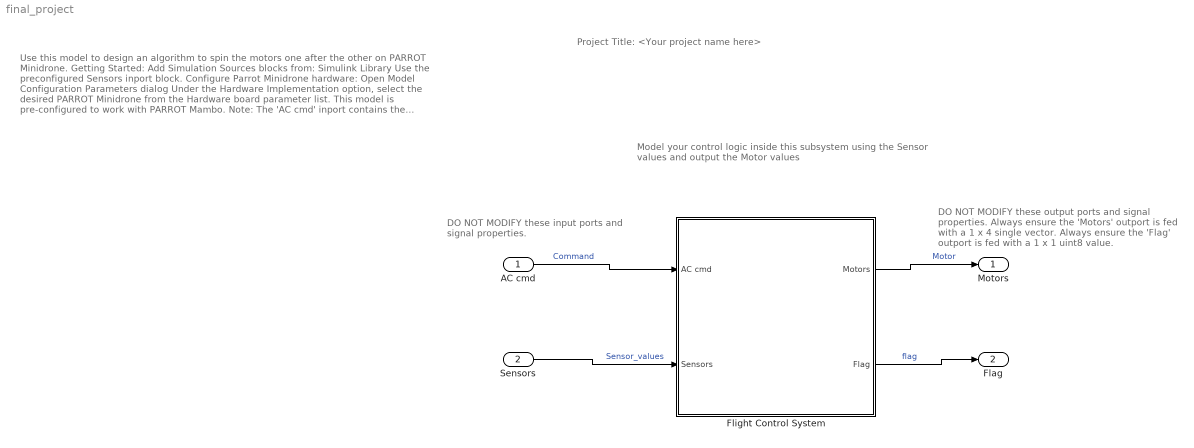
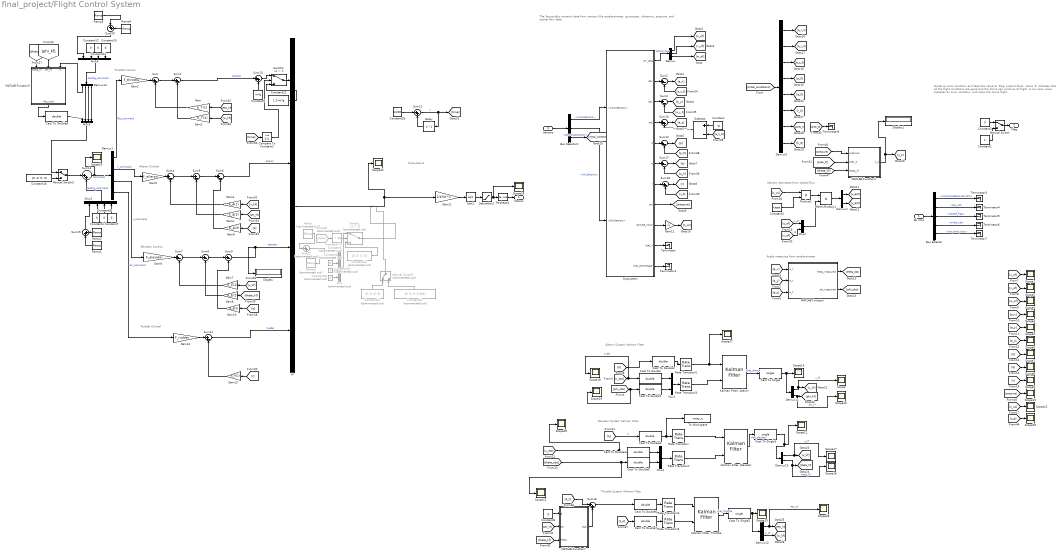
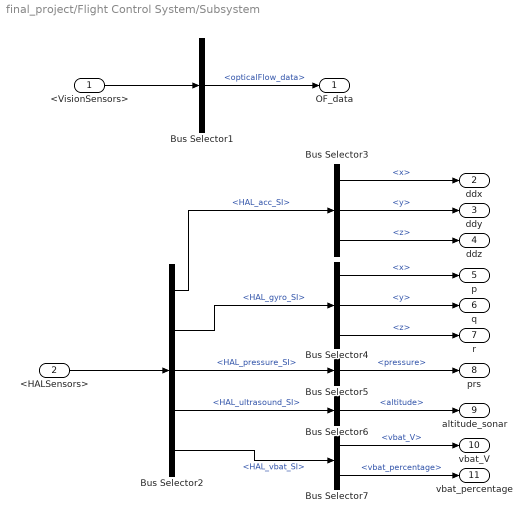
== matlab function final_project/Flight Control System/MATLAB Function1 ==
function z_p = fcn(pressure,pres_0,theta_kf) 
g = 9.8; % acceleration due to gravity m/s^2
M = 0.0289644; % molar mass of air in kg/mol
R = 8.31432; % universal gas constant Nm/mol/k
p0 = 101325; % Pa standard pressure

T =288.15;  % Assumed temperature in kelvin
K =-g*M/R/T;
z_p = (1/K.*log(pressure./p0) - 1/K.*log(pres_0./p0))/cos(theta_kf);

== matlab function final_project/Flight Control System/MATLAB Function ==
function [theta_measured,phi_measured]= fcn(a_x,a_y,a_z)
theta_measured = -a_x / sqrt(a_y^2 + a_z^2);
phi_measured = a_y/a_z;

== matlab function final_project/Flight Control System/MATLAB Function3 ==
function Pbz_cmd = fcn(theta_kf,phi_kf,P_D_cmd)
    phi = phi_kf;
    theta = theta_kf;
    psi = 0;
    R_phi = [1 0 0;
             0 cos(phi) sin(phi);
             0 -sin(phi) cos(phi)];
    R_theta = [cos(theta) 0 -sin(theta);
               0 1 0;
               sin(theta) 0 cos(theta)];
    R_psi = [cos(psi) sin(psi) 0;
             -sin(psi) cos(psi) 0;
             0 0 1];
    R = R_phi*R_theta*R_psi;
    Pb = R*[0; 0; P_D_cmd];
    Pbz_cmd = Pb(3);

== matlab function final_project/Flight Control System/MATLAB Function7 ==
function bias = fcn(g,phi,theta)
psi = 0;
R_phi = [1 0 0;
         0 cos(phi) sin(phi);
         0 -sin(phi) cos(phi)];
R_theta = [cos(theta) 0 -sin(theta);
           0 1 0;
           sin(theta) 0 cos(theta)];
R_psi = [cos(psi) sin(psi) 0;
         -sin(psi) cos(psi) 0;
         0 0 1];
R = R_phi*R_theta*R_psi;
G_b = R*[0; 0; g];
bias = G_b(3);

/*
 * final_project.c
 *
 * Academic License - for use in teaching, academic research, and meeting
 * course requirements at degree granting institutions only.  Not for
 * government, commercial, or other organizational use.
 *
 * Code generation for model "final_project".
 *
 * Model version              : 1.39
 * Simulink Coder version : 9.5 (R2021a) 14-Nov-2020
 * C source code generated on : Sat Dec 18 12:54:14 2021
 *
 * Target selection: ert.tlc
 * Note: GRT includes extra infrastructure and instrumentation for prototyping
 * Embedded hardware selection: ARM Compatible->ARM 9
 * Code generation objectives: Unspecified
 * Validation result: Not run
 */

#include "final_project.h"
#include "final_project_private.h"

/* Exported block signals */
CommandBus cmd_inport;                 /* '<Root>/AC cmd' */
SensorsBus sensor_inport;              /* '<Root>/Sensors' */
real32_T motors_outport[4];            /* '<S1>/Saturation1' */
uint8_T flag_outport;                  /* '<S1>/Manual Switch' */

/* Block signals (default storage) */
B_final_project_T final_project_B;

/* Block states (default storage) */
DW_final_project_T final_project_DW;

/* External outputs (root outports fed by signals with default storage) */
ExtY_final_project_T final_project_Y;

/* Real-time model */
static RT_MODEL_final_project_T final_project_M_;
RT_MODEL_final_project_T *const final_project_M = &final_project_M_;

/*
 * System initialize for enable system:
 *    '<S35>/MeasurementUpdate'
 *    '<S89>/MeasurementUpdate'
 */
void final_pr_MeasurementUpdate_Init(B_MeasurementUpdate_final_pro_T *localB,
  P_MeasurementUpdate_final_pro_T *localP)
{
  /* SystemInitialize for Product: '<S66>/Product3' incorporates:
   *  Outport: '<S66>/L*(y[k]-yhat[k|k-1])'
   */
  localB->Product3[0] = localP->Lykyhatkk1_Y0;
  localB->Product3[1] = localP->Lykyhatkk1_Y0;
}

/*
 * Disable for enable system:
 *    '<S35>/MeasurementUpdate'
 *    '<S89>/MeasurementUpdate'
 */
void final_MeasurementUpdate_Disable(B_MeasurementUpdate_final_pro_T *localB,
  DW_MeasurementUpdate_final_pr_T *localDW, P_MeasurementUpdate_final_pro_T
  *localP)
{
  /* Disable for Product: '<S66>/Product3' incorporates:
   *  Outport: '<S66>/L*(y[k]-yhat[k|k-1])'
   */
  localB->Product3[0] = localP->Lykyhatkk1_Y0;
  localB->Product3[1] = localP->Lykyhatkk1_Y0;
  localDW->MeasurementUpdate_MODE = false;
}

/*
 * Start for enable system:
 *    '<S35>/MeasurementUpdate'
 *    '<S89>/MeasurementUpdate'
 */
void final_p_MeasurementUpdate_Start(DW_MeasurementUpdate_final_pr_T *localDW)
{
  localDW->MeasurementUpdate_MODE = false;
}

/*
 * Output and update for enable system:
 *    '<S35>/MeasurementUpdate'
 *    '<S89>/MeasurementUpdate'
 */
void final_project_MeasurementUpdate(boolean_T rtu_Enable, const real_T rtu_Lk[4],
  real_T rtu_yk, real_T rtu_yk_e, const real_T rtu_Ck[4], const real_T
  rtu_xhatkk1[2], const real_T rtu_Dk[2], real_T rtu_uk,
  B_MeasurementUpdate_final_pro_T *localB, DW_MeasurementUpdate_final_pr_T
  *localDW, P_MeasurementUpdate_final_pro_T *localP)
{
  real_T rtu_yk_idx_0;
  real_T rtu_yk_idx_1;

  /* Outputs for Enabled SubSystem: '<S35>/MeasurementUpdate' incorporates:
   *  EnablePort: '<S66>/Enable'
   */
  if (rtu_Enable) {
    localDW->MeasurementUpdate_MODE = true;

    /* Sum: '<S66>/Sum' incorporates:
     *  Product: '<S66>/C[k]*xhat[k|k-1]'
     *  Product: '<S66>/D[k]*u[k]'
     *  Sum: '<S66>/Add1'
     */
    rtu_yk_idx_0 = rtu_yk - ((rtu_Ck[0] * rtu_xhatkk1[0] + rtu_xhatkk1[1] *
      rtu_Ck[2]) + rtu_Dk[0] * rtu_uk);
    rtu_yk_idx_1 = rtu_yk_e - ((rtu_xhatkk1[0] * rtu_Ck[1] + rtu_xhatkk1[1] *
      rtu_Ck[3]) + rtu_Dk[1] * rtu_uk);

    /* Product: '<S66>/Product3' */
    localB->Product3[0] = 0.0;
    localB->Product3[0] += rtu_Lk[0] * rtu_yk_idx_0;
    localB->Product3[0] += rtu_Lk[2] * rtu_yk_idx_1;
    localB->Product3[1] = 0.0;
    localB->Product3[1] += rtu_Lk[1] * rtu_yk_idx_0;
    localB->Product3[1] += rtu_Lk[3] * rtu_yk_idx_1;
  } else if (localDW->MeasurementUpdate_MODE) {
    final_MeasurementUpdate_Disable(localB, localDW, localP);
  }

  /* End of Outputs for SubSystem: '<S35>/MeasurementUpdate' */
}

/*
 * System initialize for enable system:
 *    '<S42>/Enabled Subsystem'
 *    '<S96>/Enabled Subsystem'
 */
void final_pro_EnabledSubsystem_Init(B_EnabledSubsystem_final_proj_T *localB,
  P_EnabledSubsystem_final_proj_T *localP)
{
  /* SystemInitialize for Product: '<S68>/Product2' incorporates:
   *  Outport: '<S68>/deltax'
   */
  localB->Product2[0] = localP->deltax_Y0;
  localB->Product2[1] = localP->deltax_Y0;
}

/*
 * Disable for enable system:
 *    '<S42>/Enabled Subsystem'
 *    '<S96>/Enabled Subsystem'
 */
void final__EnabledSubsystem_Disable(B_EnabledSubsystem_final_proj_T *localB,
  DW_EnabledSubsystem_final_pro_T *localDW, P_EnabledSubsystem_final_proj_T
  *localP)
{
  /* Disable for Product: '<S68>/Product2' incorporates:
   *  Outport: '<S68>/deltax'
   */
  localB->Product2[0] = localP->deltax_Y0;
  localB->Product2[1] = localP->deltax_Y0;
  localDW->EnabledSubsystem_MODE = false;
}

/*
 * Start for enable system:
 *    '<S42>/Enabled Subsystem'
 *    '<S96>/Enabled Subsystem'
 */
void final_pr_EnabledSubsystem_Start(DW_EnabledSubsystem_final_pro_T *localDW)
{
  localDW->EnabledSubsystem_MODE = false;
}

/*
 * Output and update for enable system:
 *    '<S42>/Enabled Subsystem'
 *    '<S96>/Enabled Subsystem'
 */
void final_project_EnabledSubsystem(boolean_T rtu_Enable, const real_T rtu_Mk[4],
  const real_T rtu_Ck[4], real_T rtu_yk, real_T rtu_yk_k, const real_T
  rtu_xhatkk1[2], B_EnabledSubsystem_final_proj_T *localB,
  DW_EnabledSubsystem_final_pro_T *localDW, P_EnabledSubsystem_final_proj_T
  *localP)
{
  real_T rtu_yk_idx_0;
  real_T rtu_yk_idx_1;

  /* Outputs for Enabled SubSystem: '<S42>/Enabled Subsystem' incorporates:
   *  EnablePort: '<S68>/Enable'
   */
  if (rtu_Enable) {
    localDW->EnabledSubsystem_MODE = true;

    /* Sum: '<S68>/Add1' incorporates:
     *  Product: '<S68>/Product'
     */
    rtu_yk_idx_0 = rtu_yk - (rtu_Ck[0] * rtu_xhatkk1[0] + rtu_xhatkk1[1] *
      rtu_Ck[2]);
    rtu_yk_idx_1 = rtu_yk_k - (rtu_xhatkk1[0] * rtu_Ck[1] + rtu_xhatkk1[1] *
      rtu_Ck[3]);

    /* Product: '<S68>/Product2' */
    localB->Product2[0] = 0.0;
    localB->Product2[0] += rtu_Mk[0] * rtu_yk_idx_0;
    localB->Product2[0] += rtu_Mk[2] * rtu_yk_idx_1;
    localB->Product2[1] = 0.0;
    localB->Product2[1] += rtu_Mk[1] * rtu_yk_idx_0;
    localB->Product2[1] += rtu_Mk[3] * rtu_yk_idx_1;
  } else if (localDW->EnabledSubsystem_MODE) {
    final__EnabledSubsystem_Disable(localB, localDW, localP);
  }

  /* End of Outputs for SubSystem: '<S42>/Enabled Subsystem' */
}

/* Model step function */
void final_project_step(void)
{
  /* local block i/o variables */
  real_T rtb_t;
  real_T tmp;
  int32_T c_tmp;
  int32_T i;
  int32_T i_0;
  real32_T rtb_TmpSignalConversionAtGain_0;
  real32_T rtb_TmpSignalConversionAtGain_1;
  real32_T rtb_TmpSignalConversionAtGain_2;
  real32_T rtb_TmpSignalConversionAtGain_3;
  static const int8_T b[9] = { 1, 0, 0, 0, 1, 0, 0, 0, 1 };

  /* Delay: '<S4>/MemoryX' incorporates:
   *  Constant: '<S4>/X0'
   */
  if (final_project_DW.icLoad) {
    final_project_DW.MemoryX_DSTATE[0] = final_project_P.X0_Value[0];
    final_project_DW.MemoryX_DSTATE[1] = final_project_P.X0_Value[1];
  }

  /* Delay: '<S4>/MemoryX' */
  final_project_B.MemoryX[0] = final_project_DW.MemoryX_DSTATE[0];
  final_project_B.MemoryX[1] = final_project_DW.MemoryX_DSTATE[1];

  /* Sum: '<S1>/Sum2' incorporates:
   *  Inport: '<Root>/Sensors'
   */
  final_project_B.Sum2 = sensor_inport.HALSensors.HAL_acc_SI.x -
    sensor_inport.SensorCalibration[0];

  /* Sum: '<S1>/Sum3' incorporates:
   *  Inport: '<Root>/Sensors'
   */
  final_project_B.Sum3 = sensor_inport.HALSensors.HAL_acc_SI.y -
    sensor_inport.SensorCalibration[1];

  /* Sum: '<S1>/Sum10' incorporates:
   *  Constant: '<S1>/Constant'
   *  Inport: '<Root>/Sensors'
   *  Sum: '<S1>/Subtract'
   */
  final_project_B.Sum10 = (-final_project_P.g - sensor_inport.SensorCalibration
    [2]) + sensor_inport.HALSensors.HAL_acc_SI.z;

  /* MATLAB Function: '<S1>/MATLAB Function' */
  final_project_B.theta_measured = -final_project_B.Sum2 / (real32_T)sqrt
    (final_project_B.Sum3 * final_project_B.Sum3 + (real32_T)
     (final_project_B.Sum10 * final_project_B.Sum10));
  final_project_B.phi_measured = final_project_B.Sum3 / (real32_T)
    final_project_B.Sum10;

  /* DataTypeConversion: '<S1>/Cast To Double5' */
  final_project_B.CastToDouble5 = final_project_B.theta_measured;

  /* Gain: '<S1>/Gain12' incorporates:
   *  Inport: '<Root>/Sensors'
   */
  final_project_B.Gain12 = final_project_P.Gain12_Gain *
    sensor_inport.HALSensors.HAL_ultrasound_SI.altitude;

  /* Product: '<S1>/Product1' incorporates:
   *  Constant: '<S1>/Constant3'
   */
  final_project_B.Clock = final_project_B.Gain12 * final_project_P.Kappa;

  /* SignalConversion generated from: '<S14>/Bus Selector1' incorporates:
   *  Inport: '<Root>/Sensors'
   */
  final_project_B.opticalFlow_data[0] =
    sensor_inport.VisionSensors.opticalFlow_data[0];
  final_project_B.opticalFlow_data[1] =
    sensor_inport.VisionSensors.opticalFlow_data[1];
  final_project_B.opticalFlow_data[2] =
    sensor_inport.VisionSensors.opticalFlow_data[2];

  /* Product: '<S1>/MatrixMultiply1' */
  final_project_B.MatrixMultiply1[0] = final_project_B.Clock *
    final_project_B.opticalFlow_data[0];
  final_project_B.MatrixMultiply1[1] = final_project_B.Clock *
    final_project_B.opticalFlow_data[1];

  /* Outputs for Enabled SubSystem: '<S96>/Enabled Subsystem' */
  /* Constant: '<S4>/Enable' incorporates:
   *  Constant: '<S4>/C'
   *  Constant: '<S69>/KalmanGainM'
   */
  final_project_EnabledSubsystem(final_project_P.Enable_Value,
    final_project_P.KalmanGainM_Value, final_project_P.C_Value,
    final_project_B.MatrixMultiply1[0], final_project_B.CastToDouble5,
    final_project_B.MemoryX, &final_project_B.EnabledSubsystem_g,
    &final_project_DW.EnabledSubsystem_g, &final_project_P.EnabledSubsystem_g);

  /* End of Outputs for SubSystem: '<S96>/Enabled Subsystem' */

  /* DataTypeConversion: '<S1>/Cast To Single1' incorporates:
   *  Sum: '<S96>/Add'
   */
  final_project_B.CastToSingle1[0] = (real32_T)
    (final_project_B.EnabledSubsystem_g.Product2[0] + final_project_B.MemoryX[0]);
  final_project_B.CastToSingle1[1] = (real32_T)
    (final_project_B.EnabledSubsystem_g.Product2[1] + final_project_B.MemoryX[1]);

  /* Delay: '<S3>/MemoryX' incorporates:
   *  Constant: '<S3>/X0'
   */
  if (final_project_DW.icLoad_k) {
    final_project_DW.MemoryX_DSTATE_n[0] = final_project_P.X0_Value_b[0];
    final_project_DW.MemoryX_DSTATE_n[1] = final_project_P.X0_Value_b[1];
  }

  /* Delay: '<S3>/MemoryX' */
  final_project_B.MemoryX_j[0] = final_project_DW.MemoryX_DSTATE_n[0];
  final_project_B.MemoryX_j[1] = final_project_DW.MemoryX_DSTATE_n[1];

  /* DataTypeConversion: '<S1>/Cast To Double1' */
  final_project_B.CastToDouble1 = final_project_B.phi_measured;

  /* Outputs for Enabled SubSystem: '<S42>/Enabled Subsystem' */
  /* Constant: '<S3>/Enable' incorporates:
   *  Constant: '<S15>/KalmanGainM'
   *  Constant: '<S3>/C'
   */
  final_project_EnabledSubsystem(final_project_P.Enable_Value_h,
    final_project_P.KalmanGainM_Value_d, final_project_P.C_Value_e,
    final_project_B.MatrixMultiply1[1], final_project_B.CastToDouble1,
    final_project_B.MemoryX_j, &final_project_B.EnabledSubsystem,
    &final_project_DW.EnabledSubsystem, &final_project_P.EnabledSubsystem);

  /* End of Outputs for SubSystem: '<S42>/Enabled Subsystem' */

  /* DataTypeConversion: '<S1>/Cast To Single' incorporates:
   *  Sum: '<S42>/Add'
   */
  final_project_B.CastToSingle[0] = (real32_T)
    (final_project_B.EnabledSubsystem.Product2[0] + final_project_B.MemoryX_j[0]);
  final_project_B.CastToSingle[1] = (real32_T)
    (final_project_B.EnabledSubsystem.Product2[1] + final_project_B.MemoryX_j[1]);

  /* ManualSwitch: '<S1>/Manual Switch3' incorporates:
   *  Constant: '<S1>/Constant12'
   *  Constant: '<S1>/Constant13'
   *  Constant: '<S1>/Constant15'
   *  Constant: '<S1>/Constant16'
   *  DataTypeConversion: '<S1>/Cast To Double8'
   *  MATLAB Function: '<S1>/MATLAB Function3'
   */
  if (final_project_P.ManualSwitch3_CurrentSetting == 1) {
    /* MATLAB Function: '<S1>/MATLAB Function3' */
    rtb_TmpSignalConversionAtGain_0 = (real32_T)sin
      (final_project_B.CastToSingle[1]);
    rtb_TmpSignalConversionAtGain_1 = (real32_T)cos
      (final_project_B.CastToSingle[1]);
    rtb_TmpSignalConversionAtGain_2 = (real32_T)sin
      (final_project_B.CastToSingle1[1]);
    rtb_TmpSignalConversionAtGain_3 = (real32_T)cos
      (final_project_B.CastToSingle1[1]);

    /* Clock: '<S12>/Clock' incorporates:
     *  Clock: '<S13>/Clock'
     */
    final_project_B.rtb_TmpSignalConversionAtGain_b = final_project_M->Timing.t
      [0];

    /* MATLAB Function: '<S1>/MATLAB Function3' */
    final_project_B.c[1] = 0.0F;
    final_project_B.c[4] = rtb_TmpSignalConversionAtGain_1;
    final_project_B.c[7] = rtb_TmpSignalConversionAtGain_0;
    final_project_B.c[2] = 0.0F;
    final_project_B.c[5] = -rtb_TmpSignalConversionAtGain_0;
    final_project_B.c[8] = rtb_TmpSignalConversionAtGain_1;
    final_project_B.rtb_TmpSignalConversionAtGain_m[0] =
      rtb_TmpSignalConversionAtGain_3;
    final_project_B.rtb_TmpSignalConversionAtGain_m[3] = 0.0F;
    final_project_B.rtb_TmpSignalConversionAtGain_m[6] =
      -rtb_TmpSignalConversionAtGain_2;
    final_project_B.c[0] = 1.0F;
    final_project_B.rtb_TmpSignalConversionAtGain_m[1] = 0.0F;
    final_project_B.c[3] = 0.0F;
    final_project_B.rtb_TmpSignalConversionAtGain_m[4] = 1.0F;
    final_project_B.c[6] = 0.0F;
    final_project_B.rtb_TmpSignalConversionAtGain_m[7] = 0.0F;
    final_project_B.rtb_TmpSignalConversionAtGain_m[2] =
      rtb_TmpSignalConversionAtGain_2;
    final_project_B.rtb_TmpSignalConversionAtGain_m[5] = 0.0F;
    final_project_B.rtb_TmpSignalConversionAtGain_m[8] =
      rtb_TmpSignalConversionAtGain_3;
    final_project_B.fv[0] = 0.0F;
    final_project_B.fv[1] = 0.0F;

    /* Step: '<S12>/Step' incorporates:
     *  Step: '<S13>/Step'
     */
    final_project_B.Clock = final_project_M->Timing.t[0];

    /* MATLAB Function: '<S1>/MATLAB Function3' incorporates:
     *  Clock: '<S12>/Clock'
     *  Constant: '<S12>/Constant'
     *  Constant: '<S12>/Constant1'
     *  Constant: '<S13>/Constant'
     *  Constant: '<S13>/Constant1'
     *  Product: '<S12>/Product'
     *  Product: '<S13>/Product'
     *  Step: '<S12>/Step'
     *  Step: '<S13>/Step'
     *  Sum: '<S12>/Output'
     *  Sum: '<S12>/Sum'
     *  Sum: '<S13>/Output'
     *  Sum: '<S13>/Sum'
     *  Sum: '<S1>/Sum20'
     */
    if (final_project_B.Clock < final_project_P.Ramp3_start) {
      tmp = final_project_P.Step_Y0;
    } else {
      tmp = final_project_P.Ramp3_slope;
    }

    if (final_project_B.Clock < final_project_P.Ramp4_start) {
      final_project_B.Clock = final_project_P.Step_Y0_j;
    } else {
      final_project_B.Clock = final_project_P.Ramp4_slope;
    }

    final_project_B.fv[2] = (real32_T)
      (((final_project_B.rtb_TmpSignalConversionAtGain_b -
         final_project_P.Ramp3_start) * tmp +
        final_project_P.Ramp3_InitialOutput) +
       ((final_project_B.rtb_TmpSignalConversionAtGain_b -
         final_project_P.Ramp4_start) * final_project_B.Clock +
        final_project_P.Ramp4_InitialOutput));
    for (i_0 = 0; i_0 < 3; i_0++) {
      for (i = 0; i < 3; i++) {
        c_tmp = i_0 + 3 * i;
        final_project_B.c_c[c_tmp] = 0.0F;
        final_project_B.c_c[c_tmp] +=
          final_project_B.rtb_TmpSignalConversionAtGain_m[3 * i] *
          final_project_B.c[i_0];
        final_project_B.c_c[c_tmp] +=
          final_project_B.rtb_TmpSignalConversionAtGain_m[3 * i + 1] *
          final_project_B.c[i_0 + 3];
        final_project_B.c_c[c_tmp] +=
          final_project_B.rtb_TmpSignalConversionAtGain_m[3 * i + 2] *
          final_project_B.c[i_0 + 6];
      }

      final_project_B.c_cx[i_0] = 0.0F;
      for (i = 0; i < 3; i++) {
        c_tmp = i_0 + 3 * i;
        final_project_B.c_k[c_tmp] = 0.0F;
        final_project_B.c_k[c_tmp] += (real32_T)b[3 * i] *
          final_project_B.c_c[i_0];
        final_project_B.c_k[c_tmp] += (real32_T)b[3 * i + 1] *
          final_project_B.c_c[i_0 + 3];
        final_project_B.c_k[c_tmp] += (real32_T)b[3 * i + 2] *
          final_project_B.c_c[i_0 + 6];
        final_project_B.c_cx[i_0] += final_project_B.c_k[c_tmp] *
          final_project_B.fv[i];
      }
    }

    final_project_B.rtb_TmpSignalConversionAtGain_b = final_project_B.c_cx[2];
    final_project_B.rtb_TmpSignalConversionAtGain_p =
      final_project_P.Constant12_Value;
    final_project_B.rtb_TmpSignalConversionAtGain_c =
      final_project_P.Constant13_Value;
    final_project_B.rtb_TmpSignalConversionAtGain_f =
      final_project_P.Constant15_Value;
  } else {
    final_project_B.rtb_TmpSignalConversionAtGain_b =
      final_project_P.Constant16_Value[0];
    final_project_B.rtb_TmpSignalConversionAtGain_p =
      final_project_P.Constant16_Value[1];
    final_project_B.rtb_TmpSignalConversionAtGain_c =
      final_project_P.Constant16_Value[2];
    final_project_B.rtb_TmpSignalConversionAtGain_f =
      final_project_P.Constant16_Value[3];
  }

  /* End of ManualSwitch: '<S1>/Manual Switch3' */

  /* Clock: '<S10>/Clock' incorporates:
   *  Clock: '<S11>/Clock'
   */
  final_project_B.rtb_Gain14_tmp = final_project_M->Timing.t[0];

  /* Step: '<S10>/Step' incorporates:
   *  Step: '<S11>/Step'
   */
  final_project_B.Clock = final_project_M->Timing.t[0];
  if (final_project_B.Clock < final_project_P.Ramp1_start) {
    tmp = final_project_P.Step_Y0_d;
  } else {
    tmp = final_project_P.Ramp1_slope;
  }

  /* End of Step: '<S10>/Step' */

  /* Step: '<S11>/Step' */
  if (final_project_B.Clock < final_project_P.Ramp2_start) {
    final_project_B.Clock = final_project_P.Step_Y0_g;
  } else {
    final_project_B.Clock = final_project_P.Ramp2_slope;
  }

  /* Sum: '<S1>/Sum14' incorporates:
   *  Clock: '<S10>/Clock'
   *  Constant: '<S10>/Constant'
   *  Constant: '<S10>/Constant1'
   *  Constant: '<S11>/Constant'
   *  Constant: '<S11>/Constant1'
   *  Constant: '<S1>/Constant4'
   *  Constant: '<S1>/Constant6'
   *  Constant: '<S1>/Constant7'
   *  Product: '<S10>/Product'
   *  Product: '<S11>/Product'
   *  Sum: '<S10>/Output'
   *  Sum: '<S10>/Sum'
   *  Sum: '<S11>/Output'
   *  Sum: '<S11>/Sum'
   *  Sum: '<S1>/Sum15'
   */
  final_project_B.Command[0] = (((final_project_B.rtb_Gain14_tmp -
    final_project_P.Ramp1_start) * tmp + final_project_P.Ramp1_InitialOutput) +
    ((final_project_B.rtb_Gain14_tmp - final_project_P.Ramp2_start) *
     final_project_B.Clock + final_project_P.Ramp2_InitialOutput)) +
    final_project_B.rtb_TmpSignalConversionAtGain_b;
  final_project_B.Command[1] = final_project_B.rtb_TmpSignalConversionAtGain_p +
    final_project_P.Constant4_Value;
  final_project_B.Command[2] = final_project_B.rtb_TmpSignalConversionAtGain_c +
    final_project_P.Constant6_Value;
  final_project_B.Command[3] = final_project_B.rtb_TmpSignalConversionAtGain_f +
    final_project_P.Constant7_Value;

  /* Scope: '<S1>/Scope23' */
  {
    StructLogVar *svar = (StructLogVar *)
      final_project_DW.Scope23_PWORK.LoggedData;
    LogVar *var = svar->signals.values;

    /* time */
    {
      double locTime = (((final_project_M->Timing.clockTick1+
                          final_project_M->Timing.clockTickH1* 4294967296.0)) *
                        0.005);
      ;
      rt_UpdateLogVar((LogVar *)svar->time, &locTime, 0);
    }

    /* signals */
    {
      real_T up0[4];
      up0[0] = final_project_B.Command[0];
      up0[1] = final_project_B.Command[1];
      up0[2] = final_project_B.Command[2];
      up0[3] = final_project_B.Command[3];
      rt_UpdateLogVar((LogVar *)var, up0, 0);
    }
  }

  /* Delay: '<S5>/MemoryX' incorporates:
   *  Constant: '<S5>/X0'
   */
  if (final_project_DW.icLoad_i) {
    final_project_DW.MemoryX_DSTATE_p[0] = final_project_P.X0_Value_o[0];
    final_project_DW.MemoryX_DSTATE_p[1] = final_project_P.X0_Value_o[1];
  }

  /* SignalConversion generated from: '<S14>/Bus Selector5' incorporates:
   *  Inport: '<Root>/Sensors'
   */
  final_project_B.pressure = sensor_inport.HALSensors.HAL_pressure_SI.pressure;

  /* MATLAB Function: '<S1>/MATLAB Function1' incorporates:
   *  Inport: '<Root>/Sensors'
   */
  final_project_B.z_p = ((real32_T)log(final_project_B.pressure / 101325.0F) *
    -8440.23926F - (real32_T)log(sensor_inport.SensorCalibration[6] / 101325.0F)
    * -8440.23926F) / (real32_T)cos(final_project_B.CastToSingle1[1]);

  /* DataTypeConversion: '<S1>/Cast To Double7' */
  final_project_B.CastToDouble7 = final_project_B.z_p;

  /* Outputs for Enabled SubSystem: '<S150>/Enabled Subsystem' incorporates:
   *  EnablePort: '<S176>/Enable'
   */
  /* Constant: '<S5>/Enable' */
  if (final_project_P.Enable_Value_o) {
    final_project_DW.EnabledSubsystem_MODE = true;

    /* Sum: '<S176>/Add1' incorporates:
     *  Constant: '<S5>/C'
     *  Delay: '<S5>/MemoryX'
     *  Product: '<S176>/Product'
     */
    final_project_B.Clock = final_project_B.CastToDouble7 -
      (final_project_P.C_Value_n[0] * final_project_DW.MemoryX_DSTATE_p[0] +
       final_project_P.C_Value_n[1] * final_project_DW.MemoryX_DSTATE_p[1]);

    /* Product: '<S176>/Product2' incorporates:
     *  Constant: '<S123>/KalmanGainM'
     */
    final_project_B.Product2[0] = final_project_P.KalmanGainM_Value_do[0] *
      final_project_B.Clock;
    final_project_B.Product2[1] = final_project_P.KalmanGainM_Value_do[1] *
      final_project_B.Clock;
  } else if (final_project_DW.EnabledSubsystem_MODE) {
    /* Disable for Product: '<S176>/Product2' incorporates:
     *  Outport: '<S176>/deltax'
     */
    final_project_B.Product2[0] = final_project_P.deltax_Y0;
    final_project_B.Product2[1] = final_project_P.deltax_Y0;
    final_project_DW.EnabledSubsystem_MODE = false;
  }

  /* End of Outputs for SubSystem: '<S150>/Enabled Subsystem' */

  /* DataTypeConversion: '<S1>/Cast To Single2' incorporates:
   *  Delay: '<S5>/MemoryX'
   *  Sum: '<S150>/Add'
   */
  final_project_B.CastToSingle2[0] = (real32_T)(final_project_B.Product2[0] +
    final_project_DW.MemoryX_DSTATE_p[0]);
  final_project_B.CastToSingle2[1] = (real32_T)(final_project_B.Product2[1] +
    final_project_DW.MemoryX_DSTATE_p[1]);

  /* Gain: '<S1>/Gain' */
  final_project_B.Gain = final_project_P.Gain_Gain *
    final_project_B.CastToSingle2[0];

  /* Gain: '<S1>/Gain1' */
  final_project_B.Gain1 = final_project_P.Gain1_Gain *
    final_project_B.CastToSingle2[1];

  /* Sum: '<S1>/Sum21' incorporates:
   *  Constant: '<S1>/Constant18'
   *  Delay: '<S1>/Delay'
   */
  rtb_t = final_project_P.Constant18_Value + final_project_DW.Delay_DSTATE;

  /* RelationalOperator: '<S2>/Compare' incorporates:
   *  Constant: '<S2>/Constant'
   */
  final_project_B.Compare = (rtb_t >= final_project_P.CompareToConstant2_const);

  /* Switch: '<S1>/Switch2' */
  if (final_project_B.Compare) {
    /* Switch: '<S1>/Switch2' incorporates:
     *  Constant: '<S1>/Constant5'
     *  Gain: '<S1>/Gain2'
     *  Sum: '<S1>/Sum'
     *  Sum: '<S1>/Sum1'
     *  Sum: '<S1>/Sum13'
     */
    final_project_B.Switch2 = ((final_project_P.F_throttle *
      final_project_B.Command[0] - final_project_B.Gain) - final_project_B.Gain1)
      + final_project_P.m * final_project_P.g;
  } else {
    /* Switch: '<S1>/Switch2' incorporates:
     *  Constant: '<S1>/Constant21'
     */
    final_project_B.Switch2 = 1.1 * final_project_P.m * final_project_P.g;
  }

  /* End of Switch: '<S1>/Switch2' */

  /* Gain: '<S1>/Gain3' */
  final_project_B.Gain3 = final_project_P.Gain3_Gain *
    final_project_B.CastToSingle[0];

  /* Gain: '<S1>/Gain4' */
  final_project_B.Gain4 = final_project_P.Gain4_Gain *
    final_project_B.CastToSingle[1];

  /* Sum: '<S1>/Sum12' incorporates:
   *  Inport: '<Root>/Sensors'
   */
  final_project_B.Sum12 = sensor_inport.HALSensors.HAL_gyro_SI.x -
    sensor_inport.SensorCalibration[3];

  /* Sum: '<S1>/Sum6' incorporates:
   *  Gain: '<S1>/Gain5'
   *  Gain: '<S1>/Gain6'
   *  Sum: '<S1>/Sum4'
   *  Sum: '<S1>/Sum5'
   */
  final_project_B.aileron = ((final_project_P.F_aileron *
    final_project_B.Command[1] - final_project_B.Gain3) - final_project_B.Gain4)
    - final_project_P.Gain6_Gain * final_project_B.Sum12;

  /* Gain: '<S1>/Gain7' */
  final_project_B.Gain7 = final_project_P.Gain7_Gain *
    final_project_B.CastToSingle1[0];

  /* Gain: '<S1>/Gain8' */
  final_project_B.Gain8 = final_project_P.Gain8_Gain *
    final_project_B.CastToSingle1[1];

  /* Sum: '<S1>/Sum17' incorporates:
   *  Inport: '<Root>/Sensors'
   */
  final_project_B.Sum17 = sensor_inport.HALSensors.HAL_gyro_SI.y -
    sensor_inport.SensorCalibration[4];

  /* Sum: '<S1>/Sum9' incorporates:
   *  Gain: '<S1>/Gain10'
   *  Gain: '<S1>/Gain9'
   *  Sum: '<S1>/Sum7'
   *  Sum: '<S1>/Sum8'
   */
  final_project_B.elevator = ((final_project_P.F_elevator *
    final_project_B.Command[2] - final_project_B.Gain7) - final_project_B.Gain8)
    - final_project_P.Gain10_Gain * final_project_B.Sum17;

  /* Sum: '<S1>/Sum18' incorporates:
   *  Inport: '<Root>/Sensors'
   */
  final_project_B.Sum18 = sensor_inport.HALSensors.HAL_gyro_SI.z -
    sensor_inport.SensorCalibration[5];

  /* Sum: '<S1>/Sum11' incorporates:
   *  Gain: '<S1>/Gain13'
   *  Gain: '<S1>/Gain14'
   */
  final_project_B.rrudder = final_project_P.F_rudder * final_project_B.Command[3]
    - final_project_P.Gain13_Gain * final_project_B.Sum18;
  for (i_0 = 0; i_0 < 4; i_0++) {
    /* Sqrt: '<S1>/Sqrt1' incorporates:
     *  Gain: '<S1>/Gain11'
     *  SignalConversion generated from: '<S1>/Gain11'
     */
    final_project_B.Clock = sqrt(final_project_P.M[i_0 + 12] * 0.25 *
      final_project_B.rrudder + (final_project_P.M[i_0 + 8] * 0.25 *
      final_project_B.elevator + (final_project_P.M[i_0 + 4] * 0.25 *
      final_project_B.aileron + 0.25 * final_project_P.M[i_0] *
      final_project_B.Switch2)));

    /* Saturate: '<S1>/Saturation1' */
    if (final_project_B.Clock > final_project_P.Saturation1_UpperSat) {
      /* Saturate: '<S1>/Saturation1' incorporates:
       *  Sqrt: '<S1>/Sqrt1'
       */
      motors_outport[i_0] = final_project_P.Saturation1_UpperSat;
    } else if (final_project_B.Clock < final_project_P.Saturation1_LowerSat) {
      /* Saturate: '<S1>/Saturation1' incorporates:
       *  Sqrt: '<S1>/Sqrt1'
       */
      motors_outport[i_0] = final_project_P.Saturation1_LowerSat;
    } else {
      /* Saturate: '<S1>/Saturation1' incorporates:
       *  Sqrt: '<S1>/Sqrt1'
       */
      motors_outport[i_0] = (real32_T)final_project_B.Clock;
    }

    /* End of Saturate: '<S1>/Saturation1' */

    /* Outport: '<Root>/Motors' incorporates:
     *  Saturate: '<S1>/Saturation1'
     */
    final_project_Y.Motors[i_0] = motors_outport[i_0];
  }

  /* Scope: '<S1>/Scope24' */
  {
    StructLogVar *svar = (StructLogVar *)
      final_project_DW.Scope24_PWORK.LoggedData;
    LogVar *var = svar->signals.values;

    /* time */
    {
      double locTime = (((final_project_M->Timing.clockTick1+
                          final_project_M->Timing.clockTickH1* 4294967296.0)) *
                        0.005);
      ;
      rt_UpdateLogVar((LogVar *)svar->time, &locTime, 0);
    }

    /* signals */
    {
      real32_T up0[4];
      up0[0] = motors_outport[0];
      up0[1] = motors_outport[1];
      up0[2] = motors_outport[2];
      up0[3] = motors_outport[3];
      rt_UpdateLogVar((LogVar *)var, up0, 0);
    }
  }

  /* Scope: '<S1>/Scope1' */
  {
    StructLogVar *svar = (StructLogVar *)
      final_project_DW.Scope1_PWORK.LoggedData;
    LogVar *var = svar->signals.values;

    /* time */
    {
      double locTime = (((final_project_M->Timing.clockTick1+
                          final_project_M->Timing.clockTickH1* 4294967296.0)) *
                        0.005);
      ;
      rt_UpdateLogVar((LogVar *)svar->time, &locTime, 0);
    }

    /* signals */
    {
      real32_T up0[1];
      up0[0] = final_project_B.opticalFlow_data[0];
      rt_UpdateLogVar((LogVar *)var, up0, 0);
    }
  }

  /* Scope: '<S1>/Scope2' */
  {
    StructLogVar *svar = (StructLogVar *)
      final_project_DW.Scope2_PWORK.LoggedData;
    LogVar *var = svar->signals.values;

    /* time */
    {
      double locTime = (((final_project_M->Timing.clockTick1+
                          final_project_M->Timing.clockTickH1* 4294967296.0)) *
                        0.005);
      ;
      rt_UpdateLogVar((LogVar *)svar->time, &locTime, 0);
    }

    /* signals */
    {
      real32_T up0[1];
      up0[0] = final_project_B.opticalFlow_data[1];
      rt_UpdateLogVar((LogVar *)var, up0, 0);
    }
  }

  /* Scope: '<S1>/Scope3' */
  {
    StructLogVar *svar = (StructLogVar *)
      final_project_DW.Scope3_PWORK.LoggedData;
    LogVar *var = svar->signals.values;

    /* time */
    {
      double locTime = (((final_project_M->Timing.clockTick1+
                          final_project_M->Timing.clockTickH1* 4294967296.0)) *
                        0.005);
      ;
      rt_UpdateLogVar((LogVar *)svar->time, &locTime, 0);
    }

    /* signals */
    {
      real32_T up0[1];
      up0[0] = final_project_B.opticalFlow_data[2];
      rt_UpdateLogVar((LogVar *)var, up0, 0);
    }
  }

  /* Scope: '<S1>/Scope15' */
  {
    StructLogVar *svar = (StructLogVar *)
      final_project_DW.Scope15_PWORK.LoggedData;
    LogVar *var = svar->signals.values;

    /* time */
    {
      double locTime = (((final_project_M->Timing.clockTick1+
                          final_project_M->Timing.clockTickH1* 4294967296.0)) *
                        0.005);
      ;
      rt_UpdateLogVar((LogVar *)svar->time, &locTime, 0);
    }

    /* signals */
    {
      real32_T up0[2];
      up0[0] = final_project_B.CastToSingle2[0];
      up0[1] = final_project_B.CastToSingle2[1];
      rt_UpdateLogVar((LogVar *)var, up0, 0);
    }
  }

  /* Scope: '<S1>/Scope26' */
  {
    StructLogVar *svar = (StructLogVar *)
      final_project_DW.Scope26_PWORK.LoggedData;
    LogVar *var = svar->signals.values;

    /* time */
    {
      double locTime = (((final_project_M->Timing.clockTick1+
                          final_project_M->Timing.clockTickH1* 4294967296.0)) *
                        0.005);
      ;
      rt_UpdateLogVar((LogVar *)svar->time, &locTime, 0);
    }

    /* signals */
    {
      real32_T up0[1];
      up0[0] = final_project_B.CastToSingle2[0];
      rt_UpdateLogVar((LogVar *)var, up0, 0);
    }
  }

  /* MATLAB Function: '<S1>/MATLAB Function7' incorporates:
   *  Constant: '<S1>/Constant8'
   */
  final_project_B.c[1] = 0.0F;
  final_project_B.c[4] = (real32_T)cos(final_project_B.CastToSingle[1]);
  final_project_B.c[7] = (real32_T)sin(final_project_B.CastToSingle[1]);
  final_project_B.c[2] = 0.0F;
  final_project_B.c[5] = -(real32_T)sin(final_project_B.CastToSingle[1]);
  final_project_B.c[8] = (real32_T)cos(final_project_B.CastToSingle[1]);
  final_project_B.rtb_TmpSignalConversionAtGain_m[0] = (real32_T)cos
    (final_project_B.CastToSingle1[1]);
  final_project_B.rtb_TmpSignalConversionAtGain_m[3] = 0.0F;
  final_project_B.rtb_TmpSignalConversionAtGain_m[6] = -(real32_T)sin
    (final_project_B.CastToSingle1[1]);
  final_project_B.c[0] = 1.0F;
  final_project_B.rtb_TmpSignalConversionAtGain_m[1] = 0.0F;
  final_project_B.c[3] = 0.0F;
  final_project_B.rtb_TmpSignalConversionAtGain_m[4] = 1.0F;
  final_project_B.c[6] = 0.0F;
  final_project_B.rtb_TmpSignalConversionAtGain_m[7] = 0.0F;
  final_project_B.rtb_TmpSignalConversionAtGain_m[2] = (real32_T)sin
    (final_project_B.CastToSingle1[1]);
  final_project_B.rtb_TmpSignalConversionAtGain_m[5] = 0.0F;
  final_project_B.rtb_TmpSignalConversionAtGain_m[8] = (real32_T)cos
    (final_project_B.CastToSingle1[1]);
  final_project_B.fv[0] = 0.0F;
  final_project_B.fv[1] = 0.0F;
  final_project_B.fv[2] = (real32_T)final_project_P.g;
  for (i_0 = 0; i_0 < 3; i_0++) {
    for (i = 0; i < 3; i++) {
      c_tmp = i_0 + 3 * i;
      final_project_B.c_c[c_tmp] = 0.0F;
      final_project_B.c_c[c_tmp] +=
        final_project_B.rtb_TmpSignalConversionAtGain_m[3 * i] *
        final_project_B.c[i_0];
      final_project_B.c_c[c_tmp] +=
        final_project_B.rtb_TmpSignalConversionAtGain_m[3 * i + 1] *
        final_project_B.c[i_0 + 3];
      final_project_B.c_c[c_tmp] +=
        final_project_B.rtb_TmpSignalConversionAtGain_m[3 * i + 2] *
        final_project_B.c[i_0 + 6];
    }

    final_project_B.c_cx[i_0] = 0.0F;
    for (i = 0; i < 3; i++) {
      c_tmp = i_0 + 3 * i;
      final_project_B.c_k[c_tmp] = 0.0F;
      final_project_B.c_k[c_tmp] += (real32_T)b[3 * i] * final_project_B.c_c[i_0];
      final_project_B.c_k[c_tmp] += (real32_T)b[3 * i + 1] *
        final_project_B.c_c[i_0 + 3];
      final_project_B.c_k[c_tmp] += (real32_T)b[3 * i + 2] *
        final_project_B.c_c[i_0 + 6];
      final_project_B.c_cx[i_0] += final_project_B.c_k[c_tmp] *
        final_project_B.fv[i];
    }
  }

  final_project_B.bias = final_project_B.c_cx[2];

  /* End of MATLAB Function: '<S1>/MATLAB Function7' */

  /* Sum: '<S1>/Sum16' */
  final_project_B.Sum16 = final_project_B.Sum10 + final_project_B.bias;

  /* Outputs for Enabled SubSystem: '<S143>/MeasurementUpdate' incorporates:
   *  EnablePort: '<S174>/Enable'
   */
  /* Constant: '<S5>/Enable' */
  if (final_project_P.Enable_Value_o) {
    final_project_DW.MeasurementUpdate_MODE = true;

    /* Sum: '<S174>/Sum' incorporates:
     *  Constant: '<S5>/C'
     *  Constant: '<S5>/D'
     *  Delay: '<S5>/MemoryX'
     *  Product: '<S174>/C[k]*xhat[k|k-1]'
     *  Product: '<S174>/D[k]*u[k]'
     *  Sum: '<S174>/Add1'
     */
    final_project_B.Clock = final_project_B.CastToDouble7 -
      ((final_project_P.C_Value_n[0] * final_project_DW.MemoryX_DSTATE_p[0] +
        final_project_P.C_Value_n[1] * final_project_DW.MemoryX_DSTATE_p[1]) +
       final_project_P.D_Value * final_project_B.Sum16);

    /* Product: '<S174>/Product3' incorporates:
     *  Constant: '<S123>/KalmanGainL'
     */
    final_project_B.Product3[0] = final_project_P.KalmanGainL_Value_c[0] *
      final_project_B.Clock;
    final_project_B.Product3[1] = final_project_P.KalmanGainL_Value_c[1] *
      final_project_B.Clock;
  } else if (final_project_DW.MeasurementUpdate_MODE) {
    /* Disable for Product: '<S174>/Product3' incorporates:
     *  Outport: '<S174>/L*(y[k]-yhat[k|k-1])'
     */
    final_project_B.Product3[0] = final_project_P.Lykyhatkk1_Y0;
    final_project_B.Product3[1] = final_project_P.Lykyhatkk1_Y0;
    final_project_DW.MeasurementUpdate_MODE = false;
  }

  /* End of Outputs for SubSystem: '<S143>/MeasurementUpdate' */

  /* Sum: '<S143>/Add' incorporates:
   *  Constant: '<S5>/A'
   *  Constant: '<S5>/B'
   *  Delay: '<S5>/MemoryX'
   *  Product: '<S143>/A[k]*xhat[k|k-1]'
   *  Product: '<S143>/B[k]*u[k]'
   *  Product: '<S174>/Product3'
   */
  final_project_B.Add[0] = ((final_project_P.A_Value_i[0] *
    final_project_DW.MemoryX_DSTATE_p[0] + final_project_DW.MemoryX_DSTATE_p[1] *
    final_project_P.A_Value_i[2]) + final_project_P.B_Value[0] *
    final_project_B.Sum16) + final_project_B.Product3[0];
  final_project_B.Add[1] = ((final_project_DW.MemoryX_DSTATE_p[0] *
    final_project_P.A_Value_i[1] + final_project_DW.MemoryX_DSTATE_p[1] *
    final_project_P.A_Value_i[3]) + final_project_P.B_Value[1] *
    final_project_B.Sum16) + final_project_B.Product3[1];

  /* DataTypeConversion: '<S1>/Cast To Double3' */
  final_project_B.CastToDouble3 = final_project_B.Sum17;

  /* Outputs for Enabled SubSystem: '<S89>/MeasurementUpdate' */
  /* Constant: '<S4>/Enable' incorporates:
   *  Constant: '<S4>/C'
   *  Constant: '<S4>/D'
   *  Constant: '<S69>/KalmanGainL'
   */
  final_project_MeasurementUpdate(final_project_P.Enable_Value,
    final_project_P.KalmanGainL_Value_b, final_project_B.MatrixMultiply1[0],
    final_project_B.CastToDouble5, final_project_P.C_Value,
    final_project_B.MemoryX, final_project_P.D_Value_n,
    final_project_B.CastToDouble3, &final_project_B.MeasurementUpdate_f,
    &final_project_DW.MeasurementUpdate_f, &final_project_P.MeasurementUpdate_f);

  /* End of Outputs for SubSystem: '<S89>/MeasurementUpdate' */

  /* Sum: '<S89>/Add' incorporates:
   *  Constant: '<S4>/A'
   *  Constant: '<S4>/B'
   *  Product: '<S120>/Product3'
   *  Product: '<S89>/A[k]*xhat[k|k-1]'
   *  Product: '<S89>/B[k]*u[k]'
   */
  final_project_B.Add_g[0] = ((final_project_P.A_Value_d[0] *
    final_project_B.MemoryX[0] + final_project_B.MemoryX[1] *
    final_project_P.A_Value_d[2]) + final_project_P.B_Value_g[0] *
    final_project_B.CastToDouble3) +
    final_project_B.MeasurementUpdate_f.Product3[0];
  final_project_B.Add_g[1] = ((final_project_B.MemoryX[0] *
    final_project_P.A_Value_d[1] + final_project_B.MemoryX[1] *
    final_project_P.A_Value_d[3]) + final_project_P.B_Value_g[1] *
    final_project_B.CastToDouble3) +
    final_project_B.MeasurementUpdate_f.Product3[1];

  /* DataTypeConversion: '<S1>/Cast To Double2' */
  final_project_B.CastToDouble2 = final_project_B.Sum12;

  /* Outputs for Enabled SubSystem: '<S35>/MeasurementUpdate' */
  /* Constant: '<S3>/Enable' incorporates:
   *  Constant: '<S15>/KalmanGainL'
   *  Constant: '<S3>/C'
   *  Constant: '<S3>/D'
   */
  final_project_MeasurementUpdate(final_project_P.Enable_Value_h,
    final_project_P.KalmanGainL_Value, final_project_B.MatrixMultiply1[1],
    final_project_B.CastToDouble1, final_project_P.C_Value_e,
    final_project_B.MemoryX_j, final_project_P.D_Value_e,
    final_project_B.CastToDouble2, &final_project_B.MeasurementUpdate,
    &final_project_DW.MeasurementUpdate, &final_project_P.MeasurementUpdate);

  /* End of Outputs for SubSystem: '<S35>/MeasurementUpdate' */

  /* Sum: '<S35>/Add' incorporates:
   *  Constant: '<S3>/A'
   *  Constant: '<S3>/B'
   *  Product: '<S35>/A[k]*xhat[k|k-1]'
   *  Product: '<S35>/B[k]*u[k]'
   *  Product: '<S66>/Product3'
   */
  final_project_B.Add_l[0] = ((final_project_P.A_Value[0] *
    final_project_B.MemoryX_j[0] + final_project_B.MemoryX_j[1] *
    final_project_P.A_Value[2]) + final_project_P.B_Value_m[0] *
    final_project_B.CastToDouble2) + final_project_B.MeasurementUpdate.Product3
    [0];
  final_project_B.Add_l[1] = ((final_project_B.MemoryX_j[0] *
    final_project_P.A_Value[1] + final_project_B.MemoryX_j[1] *
    final_project_P.A_Value[3]) + final_project_P.B_Value_m[1] *
    final_project_B.CastToDouble2) + final_project_B.MeasurementUpdate.Product3
    [1];

  /* Scope: '<S1>/Scope' */
  {
    StructLogVar *svar = (StructLogVar *)final_project_DW.Scope_PWORK.LoggedData;
    LogVar *var = svar->signals.values;

    /* time */
    {
      double locTime = (((final_project_M->Timing.clockTick1+
                          final_project_M->Timing.clockTickH1* 4294967296.0)) *
                        0.005);
      ;
      rt_UpdateLogVar((LogVar *)svar->time, &locTime, 0);
    }

    /* signals */
    {
      real32_T up0[1];
      up0[0] = final_project_B.CastToSingle[0];
      rt_UpdateLogVar((LogVar *)var, up0, 0);
    }
  }

  /* Scope: '<S1>/Scope10' */
  {
    StructLogVar *svar = (StructLogVar *)
      final_project_DW.Scope10_PWORK.LoggedData;
    LogVar *var = svar->signals.values;

    /* time */
    {
      double locTime = (((final_project_M->Timing.clockTick1+
                          final_project_M->Timing.clockTickH1* 4294967296.0)) *
                        0.005);
      ;
      rt_UpdateLogVar((LogVar *)svar->time, &locTime, 0);
    }

    /* signals */
    {
      real32_T up0[1];
      up0[0] = final_project_B.CastToSingle[1];
      rt_UpdateLogVar((LogVar *)var, up0, 0);
    }
  }

  /* Scope: '<S1>/Scope14' */
  {
    StructLogVar *svar = (StructLogVar *)
      final_project_DW.Scope14_PWORK.LoggedData;
    LogVar *var = svar->signals.values;

    /* time */
    {
      double locTime = (((final_project_M->Timing.clockTick1+
                          final_project_M->Timing.clockTickH1* 4294967296.0)) *
                        0.005);
      ;
      rt_UpdateLogVar((LogVar *)svar->time, &locTime, 0);
    }

    /* signals */
    {
      real32_T up0[2];
      up0[0] = final_project_B.CastToSingle[0];
      up0[1] = final_project_B.CastToSingle[1];
      rt_UpdateLogVar((LogVar *)var, up0, 0);
    }
  }

  /* Scope: '<S1>/Scope11' */
  {
    StructLogVar *svar = (StructLogVar *)
      final_project_DW.Scope11_PWORK.LoggedData;
    LogVar *var = svar->signals.values;

    /* time */
    {
      double locTime = (((final_project_M->Timing.clockTick1+
                          final_project_M->Timing.clockTickH1* 4294967296.0)) *
                        0.005);
      ;
      rt_UpdateLogVar((LogVar *)svar->time, &locTime, 0);
    }

    /* signals */
    {
      real32_T up0[2];
      up0[0] = final_project_B.CastToSingle1[0];
      up0[1] = final_project_B.CastToSingle1[1];
      rt_UpdateLogVar((LogVar *)var, up0, 0);
    }
  }

  /* Scope: '<S1>/Scope16' */
  {
    StructLogVar *svar = (StructLogVar *)
      final_project_DW.Scope16_PWORK.LoggedData;
    LogVar *var = svar->signals.values;

    /* time */
    {
      double locTime = (((final_project_M->Timing.clockTick1+
                          final_project_M->Timing.clockTickH1* 4294967296.0)) *
                        0.005);
      ;
      rt_UpdateLogVar((LogVar *)svar->time, &locTime, 0);
    }

    /* signals */
    {
      real32_T up0[1];
      up0[0] = final_project_B.CastToSingle1[1];
      rt_UpdateLogVar((LogVar *)var, up0, 0);
    }
  }

  /* Scope: '<S1>/Scope17' */
  {
    StructLogVar *svar = (StructLogVar *)
      final_project_DW.Scope17_PWORK.LoggedData;
    LogVar *var = svar->signals.values;

    /* time */
    {
      double locTime = (((final_project_M->Timing.clockTick1+
                          final_project_M->Timing.clockTickH1* 4294967296.0)) *
                        0.005);
      ;
      rt_UpdateLogVar((LogVar *)svar->time, &locTime, 0);
    }

    /* signals */
    {
      real32_T up0[1];
      up0[0] = final_project_B.CastToSingle1[0];
      rt_UpdateLogVar((LogVar *)var, up0, 0);
    }
  }

  /* Scope: '<S1>/Scope18' */
  {
    StructLogVar *svar = (StructLogVar *)
      final_project_DW.Scope18_PWORK.LoggedData;
    LogVar *var = svar->signals.values;

    /* time */
    {
      double locTime = (((final_project_M->Timing.clockTick1+
                          final_project_M->Timing.clockTickH1* 4294967296.0)) *
                        0.005);
      ;
      rt_UpdateLogVar((LogVar *)svar->time, &locTime, 0);
    }

    /* signals */
    {
      real_T up0[1];
      up0[0] = final_project_B.MatrixMultiply1[1];
      rt_UpdateLogVar((LogVar *)var, up0, 0);
    }
  }

  /* Scope: '<S1>/Scope20' */
  {
    StructLogVar *svar = (StructLogVar *)
      final_project_DW.Scope20_PWORK.LoggedData;
    LogVar *var = svar->signals.values;

    /* time */
    {
      double locTime = (((final_project_M->Timing.clockTick1+
                          final_project_M->Timing.clockTickH1* 4294967296.0)) *
                        0.005);
      ;
      rt_UpdateLogVar((LogVar *)svar->time, &locTime, 0);
    }

    /* signals */
    {
      real_T up0[1];
      up0[0] = final_project_B.MatrixMultiply1[0];
      rt_UpdateLogVar((LogVar *)var, up0, 0);
    }
  }

  /* ToWorkspace: '<S1>/To Workspace' */
  {
    double locTime = (((final_project_M->Timing.clockTick1+
                        final_project_M->Timing.clockTickH1* 4294967296.0)) *
                      0.005);
    ;
    rt_UpdateStructLogVar((StructLogVar *)
                          final_project_DW.ToWorkspace_PWORK.LoggedData,
                          &locTime, &final_project_B.CastToDouble3);
  }

  /* Scope: '<S1>/Scope22' */
  {
    StructLogVar *svar = (StructLogVar *)
      final_project_DW.Scope22_PWORK.LoggedData;
    LogVar *var = svar->signals.values;

    /* time */
    {
      double locTime = (((final_project_M->Timing.clockTick1+
                          final_project_M->Timing.clockTickH1* 4294967296.0)) *
                        0.005);
      ;
      rt_UpdateLogVar((LogVar *)svar->time, &locTime, 0);
    }

    /* signals */
    {
      real_T up0[4];
      up0[0] = final_project_B.Switch2;
      up0[1] = final_project_B.aileron;
      up0[2] = final_project_B.elevator;
      up0[3] = final_project_B.rrudder;
      rt_UpdateLogVar((LogVar *)var, up0, 0);
    }
  }

  /* Scope: '<S1>/Scope9' */
  {
    StructLogVar *svar = (StructLogVar *)
      final_project_DW.Scope9_PWORK.LoggedData;
    LogVar *var = svar->signals.values;

    /* time */
    {
      double locTime = (((final_project_M->Timing.clockTick1+
                          final_project_M->Timing.clockTickH1* 4294967296.0)) *
                        0.005);
      ;
      rt_UpdateLogVar((LogVar *)svar->time, &locTime, 0);
    }

    /* signals */
    {
      real32_T up0[1];
      up0[0] = final_project_B.Sum18;
      rt_UpdateLogVar((LogVar *)var, up0, 0);
    }
  }

  /* Scope: '<S1>/Scope8' */
  {
    StructLogVar *svar = (StructLogVar *)
      final_project_DW.Scope8_PWORK.LoggedData;
    LogVar *var = svar->signals.values;

    /* time */
    {
      double locTime = (((final_project_M->Timing.clockTick1+
                          final_project_M->Timing.clockTickH1* 4294967296.0)) *
                        0.005);
      ;
      rt_UpdateLogVar((LogVar *)svar->time, &locTime, 0);
    }

    /* signals */
    {
      real32_T up0[1];
      up0[0] = final_project_B.Sum17;
      rt_UpdateLogVar((LogVar *)var, up0, 0);
    }
  }

  /* Scope: '<S1>/Scope7' */
  {
    StructLogVar *svar = (StructLogVar *)
      final_project_DW.Scope7_PWORK.LoggedData;
    LogVar *var = svar->signals.values;

    /* time */
    {
      double locTime = (((final_project_M->Timing.clockTick1+
                          final_project_M->Timing.clockTickH1* 4294967296.0)) *
                        0.005);
      ;
      rt_UpdateLogVar((LogVar *)svar->time, &locTime, 0);
    }

    /* signals */
    {
      real32_T up0[1];
      up0[0] = final_project_B.Sum12;
      rt_UpdateLogVar((LogVar *)var, up0, 0);
    }
  }

  /* Scope: '<S1>/Scope25' */
  {
    StructLogVar *svar = (StructLogVar *)
      final_project_DW.Scope25_PWORK.LoggedData;
    LogVar *var = svar->signals.values;

    /* time */
    {
      double locTime = (((final_project_M->Timing.clockTick1+
                          final_project_M->Timing.clockTickH1* 4294967296.0)) *
                        0.005);
      ;
      rt_UpdateLogVar((LogVar *)svar->time, &locTime, 0);
    }

    /* signals */
    {
      real32_T up0[1];
      up0[0] = final_project_B.z_p;
      rt_UpdateLogVar((LogVar *)var, up0, 0);
    }
  }

  /* Scope: '<S1>/Scope12' */
  {
    StructLogVar *svar = (StructLogVar *)
      final_project_DW.Scope12_PWORK.LoggedData;
    LogVar *var = svar->signals.values;

    /* time */
    {
      double locTime = (((final_project_M->Timing.clockTick1+
                          final_project_M->Timing.clockTickH1* 4294967296.0)) *
                        0.005);
      ;
      rt_UpdateLogVar((LogVar *)svar->time, &locTime, 0);
    }

    /* signals */
    {
      real32_T up0[1];
      up0[0] = final_project_B.pressure;
      rt_UpdateLogVar((LogVar *)var, up0, 0);
    }
  }

  /* Scope: '<S1>/Scope13' */
  {
    StructLogVar *svar = (StructLogVar *)
      final_project_DW.Scope13_PWORK.LoggedData;
    LogVar *var = svar->signals.values;

    /* time */
    {
      double locTime = (((final_project_M->Timing.clockTick1+
                          final_project_M->Timing.clockTickH1* 4294967296.0)) *
                        0.005);
      ;
      rt_UpdateLogVar((LogVar *)svar->time, &locTime, 0);
    }

    /* signals */
    {
      real32_T up0[1];
      up0[0] = final_project_B.Gain12;
      rt_UpdateLogVar((LogVar *)var, up0, 0);
    }
  }

  /* Scope: '<S1>/Scope19' */
  {
    StructLogVar *svar = (StructLogVar *)
      final_project_DW.Scope19_PWORK.LoggedData;
    LogVar *var = svar->signals.values;

    /* time */
    {
      double locTime = (((final_project_M->Timing.clockTick1+
                          final_project_M->Timing.clockTickH1* 4294967296.0)) *
                        0.005);
      ;
      rt_UpdateLogVar((LogVar *)svar->time, &locTime, 0);
    }

    /* signals */
    {
      real32_T up0[1];
      up0[0] = final_project_B.phi_measured;
      rt_UpdateLogVar((LogVar *)var, up0, 0);
    }
  }

  /* Scope: '<S1>/Scope21' */
  {
    StructLogVar *svar = (StructLogVar *)
      final_project_DW.Scope21_PWORK.LoggedData;
    LogVar *var = svar->signals.values;

    /* time */
    {
      double locTime = (((final_project_M->Timing.clockTick1+
                          final_project_M->Timing.clockTickH1* 4294967296.0)) *
                        0.005);
      ;
      rt_UpdateLogVar((LogVar *)svar->time, &locTime, 0);
    }

    /* signals */
    {
      real32_T up0[1];
      up0[0] = final_project_B.theta_measured;
      rt_UpdateLogVar((LogVar *)var, up0, 0);
    }
  }

  /* Scope: '<S1>/Scope6' */
  {
    StructLogVar *svar = (StructLogVar *)
      final_project_DW.Scope6_PWORK.LoggedData;
    LogVar *var = svar->signals.values;

    /* time */
    {
      double locTime = (((final_project_M->Timing.clockTick1+
                          final_project_M->Timing.clockTickH1* 4294967296.0)) *
                        0.005);
      ;
      rt_UpdateLogVar((LogVar *)svar->time, &locTime, 0);
    }

    /* signals */
    {
      real_T up0[1];
      up0[0] = final_project_B.Sum10;
      rt_UpdateLogVar((LogVar *)var, up0, 0);
    }
  }

  /* Scope: '<S1>/Scope5' */
  {
    StructLogVar *svar = (StructLogVar *)
      final_project_DW.Scope5_PWORK.LoggedData;
    LogVar *var = svar->signals.values;

    /* time */
    {
      double locTime = (((final_project_M->Timing.clockTick1+
                          final_project_M->Timing.clockTickH1* 4294967296.0)) *
                        0.005);
      ;
      rt_UpdateLogVar((LogVar *)svar->time, &locTime, 0);
    }

    /* signals */
    {
      real32_T up0[1];
      up0[0] = final_project_B.Sum3;
      rt_UpdateLogVar((LogVar *)var, up0, 0);
    }
  }

  /* Scope: '<S1>/Scope4' */
  {
    StructLogVar *svar = (StructLogVar *)
      final_project_DW.Scope4_PWORK.LoggedData;
    LogVar *var = svar->signals.values;

    /* time */
    {
      double locTime = (((final_project_M->Timing.clockTick1+
                          final_project_M->Timing.clockTickH1* 4294967296.0)) *
                        0.005);
      ;
      rt_UpdateLogVar((LogVar *)svar->time, &locTime, 0);
    }

    /* signals */
    {
      real32_T up0[1];
      up0[0] = final_project_B.Sum2;
      rt_UpdateLogVar((LogVar *)var, up0, 0);
    }
  }

  /* ManualSwitch: '<S1>/Manual Switch' */
  if (final_project_P.ManualSwitch_CurrentSetting == 1) {
    /* ManualSwitch: '<S1>/Manual Switch' incorporates:
     *  Constant: '<S1>/Constant2'
     */
    flag_outport = final_project_P.Constant2_Value;
  } else {
    /* ManualSwitch: '<S1>/Manual Switch' incorporates:
     *  Constant: '<S1>/Constant1'
     */
    flag_outport = final_project_P.Constant1_Value;
  }

  /* End of ManualSwitch: '<S1>/Manual Switch' */

  /* Outport: '<Root>/Flag' */
  final_project_Y.Flag = flag_outport;

  /* Matfile logging */
  rt_UpdateTXYLogVars(final_project_M->rtwLogInfo, (final_project_M->Timing.t));

  /* Update for Delay: '<S4>/MemoryX' */
  final_project_DW.icLoad = false;

  /* Update for Delay: '<S3>/MemoryX' */
  final_project_DW.icLoad_k = false;

  /* Update for Delay: '<S5>/MemoryX' */
  final_project_DW.icLoad_i = false;

  /* Update for Delay: '<S4>/MemoryX' */
  final_project_DW.MemoryX_DSTATE[0] = final_project_B.Add_g[0];

  /* Update for Delay: '<S3>/MemoryX' */
  final_project_DW.MemoryX_DSTATE_n[0] = final_project_B.Add_l[0];

  /* Update for Delay: '<S5>/MemoryX' */
  final_project_DW.MemoryX_DSTATE_p[0] = final_project_B.Add[0];

  /* Update for Delay: '<S4>/MemoryX' */
  final_project_DW.MemoryX_DSTATE[1] = final_project_B.Add_g[1];

  /* Update for Delay: '<S3>/MemoryX' */
  final_project_DW.MemoryX_DSTATE_n[1] = final_project_B.Add_l[1];

  /* Update for Delay: '<S5>/MemoryX' */
  final_project_DW.MemoryX_DSTATE_p[1] = final_project_B.Add[1];

  /* Update for Delay: '<S1>/Delay' */
  final_project_DW.Delay_DSTATE = rtb_t;

  /* signal main to stop simulation */
  {                                    /* Sample time: [0.0s, 0.0s] */
    if ((rtmGetTFinal(final_project_M)!=-1) &&
        !((rtmGetTFinal(final_project_M)-final_project_M->Timing.t[0]) >
          final_project_M->Timing.t[0] * (DBL_EPSILON))) {
      rtmSetErrorStatus(final_project_M, "Simulation finished");
    }
  }

  /* Update absolute time for base rate */
  /* The "clockTick0" counts the number of times the code of this task has
   * been executed. The absolute time is the multiplication of "clockTick0"
   * and "Timing.stepSize0". Size of "clockTick0" ensures timer will not
   * overflow during the application lifespan selected.
   * Timer of this task consists of two 32 bit unsigned integers.
   * The two integers represent the low bits Timing.clockTick0 and the high bits
   * Timing.clockTickH0. When the low bit overflows to 0, the high bits increment.
   */
  if (!(++final_project_M->Timing.clockTick0)) {
    ++final_project_M->Timing.clockTickH0;
  }

  final_project_M->Timing.t[0] = final_project_M->Timing.clockTick0 *
    final_project_M->Timing.stepSize0 + final_project_M->Timing.clockTickH0 *
    final_project_M->Timing.stepSize0 * 4294967296.0;

  {
    /* Update absolute timer for sample time: [0.005s, 0.0s] */
    /* The "clockTick1" counts the number of times the code of this task has
     * been executed. The resolution of this integer timer is 0.005, which is the step size
     * of the task. Size of "clockTick1" ensures timer will not overflow during the
     * application lifespan selected.
     * Timer of this task consists of two 32 bit unsigned integers.
     * The two integers represent the low bits Timing.clockTick1 and the high bits
     * Timing.clockTickH1. When the low bit overflows to 0, the high bits increment.
     */
    final_project_M->Timing.clockTick1++;
    if (!final_project_M->Timing.clockTick1) {
      final_project_M->Timing.clockTickH1++;
    }
  }
}
